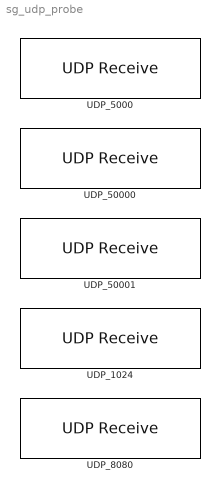
/*
 * sg_udp_probe.cpp
 *
 * Academic License - for use in teaching, academic research, and meeting
 * course requirements at degree granting institutions only.  Not for
 * government, commercial, or other organizational use.
 *
 * Code generation for model "sg_udp_probe".
 *
 * Model version              : 1.1
 * Simulink Coder version : 25.1 (R2025a) 21-Nov-2024
 * C++ source code generated on : Tue Feb 24 15:26:22 2026
 *
 * Target selection: speedgoat.tlc
 * Note: GRT includes extra infrastructure and instrumentation for prototyping
 * Embedded hardware selection: Intel->x86-64 (Linux 64)
 * Code generation objectives: Unspecified
 * Validation result: Not run
 */

#include "sg_udp_probe.h"
#include "sg_udp_probe_cal.h"
#include <cstring>

/* Block signals (default storage) */
B_sg_udp_probe_T sg_udp_probe_B;

/* Block states (default storage) */
DW_sg_udp_probe_T sg_udp_probe_DW;

/* Real-time model */
RT_MODEL_sg_udp_probe_T sg_udp_probe_M_ = RT_MODEL_sg_udp_probe_T();
RT_MODEL_sg_udp_probe_T *const sg_udp_probe_M = &sg_udp_probe_M_;

/* Model step function */
void sg_udp_probe_step(void)
{
  /* S-Function (slrealtimeUDPReceive): '<Root>/UDP_1024' */
  {
    try {
      slrealtime::ip::udp::Socket *udpSock = reinterpret_cast<slrealtime::ip::
        udp::Socket*>(sg_udp_probe_DW.UDP_1024_PWORK[0]);
      char *buffer = (char *)sg_udp_probe_DW.UDP_1024_PWORK[1];
      memset(buffer,0,2048);
      void *dataPort = &sg_udp_probe_B.UDP_1024_o1[0];
      int_T numBytesAvail = (int_T)(udpSock->bytesToRead());
      if (numBytesAvail > 0) {
        uint8_t* fmAddArg = (uint8_t *)sg_udp_probe_cal->UDP_1024_fmAddress;
        size_t num_bytesRcvd = (size_t)(udpSock->receive(buffer,( numBytesAvail<
          65507 )? numBytesAvail:65507, !1,fmAddArg));
        if (num_bytesRcvd == 0) {
          sg_udp_probe_B.UDP_1024_o2 = 0;
        } else {
          sg_udp_probe_B.UDP_1024_o2 = (double)num_bytesRcvd;
          memcpy(dataPort,(void*)buffer,2048);
        }
      } else {
        sg_udp_probe_B.UDP_1024_o2 = 0;
      }
    } catch (std::exception& e) {
      std::string tmp = std::string(e.what());
      static std::string eMsg = tmp;
      rtmSetErrorStatus(sg_udp_probe_M, eMsg.c_str());
      rtmSetStopRequested(sg_udp_probe_M, 1);
      ;
    }
  }

  /* S-Function (slrealtimeUDPReceive): '<Root>/UDP_5000' */
  {
    try {
      slrealtime::ip::udp::Socket *udpSock = reinterpret_cast<slrealtime::ip::
        udp::Socket*>(sg_udp_probe_DW.UDP_5000_PWORK[0]);
      char *buffer = (char *)sg_udp_probe_DW.UDP_5000_PWORK[1];
      memset(buffer,0,2048);
      void *dataPort = &sg_udp_probe_B.UDP_5000_o1[0];
      int_T numBytesAvail = (int_T)(udpSock->bytesToRead());
      if (numBytesAvail > 0) {
        uint8_t* fmAddArg = (uint8_t *)sg_udp_probe_cal->UDP_5000_fmAddress;
        size_t num_bytesRcvd = (size_t)(udpSock->receive(buffer,( numBytesAvail<
          65507 )? numBytesAvail:65507, !1,fmAddArg));
        if (num_bytesRcvd == 0) {
          sg_udp_probe_B.UDP_5000_o2 = 0;
        } else {
          sg_udp_probe_B.UDP_5000_o2 = (double)num_bytesRcvd;
          memcpy(dataPort,(void*)buffer,2048);
        }
      } else {
        sg_udp_probe_B.UDP_5000_o2 = 0;
      }
    } catch (std::exception& e) {
      std::string tmp = std::string(e.what());
      static std::string eMsg = tmp;
      rtmSetErrorStatus(sg_udp_probe_M, eMsg.c_str());
      rtmSetStopRequested(sg_udp_probe_M, 1);
      ;
    }
  }

  /* S-Function (slrealtimeUDPReceive): '<Root>/UDP_50000' */
  {
    try {
      slrealtime::ip::udp::Socket *udpSock = reinterpret_cast<slrealtime::ip::
        udp::Socket*>(sg_udp_probe_DW.UDP_50000_PWORK[0]);
      char *buffer = (char *)sg_udp_probe_DW.UDP_50000_PWORK[1];
      memset(buffer,0,2048);
      void *dataPort = &sg_udp_probe_B.UDP_50000_o1[0];
      int_T numBytesAvail = (int_T)(udpSock->bytesToRead());
      if (numBytesAvail > 0) {
        uint8_t* fmAddArg = (uint8_t *)sg_udp_probe_cal->UDP_50000_fmAddress;
        size_t num_bytesRcvd = (size_t)(udpSock->receive(buffer,( numBytesAvail<
          65507 )? numBytesAvail:65507, !1,fmAddArg));
        if (num_bytesRcvd == 0) {
          sg_udp_probe_B.UDP_50000_o2 = 0;
        } else {
          sg_udp_probe_B.UDP_50000_o2 = (double)num_bytesRcvd;
          memcpy(dataPort,(void*)buffer,2048);
        }
      } else {
        sg_udp_probe_B.UDP_50000_o2 = 0;
      }
    } catch (std::exception& e) {
      std::string tmp = std::string(e.what());
      static std::string eMsg = tmp;
      rtmSetErrorStatus(sg_udp_probe_M, eMsg.c_str());
      rtmSetStopRequested(sg_udp_probe_M, 1);
      ;
    }
  }

  /* S-Function (slrealtimeUDPReceive): '<Root>/UDP_50001' */
  {
    try {
      slrealtime::ip::udp::Socket *udpSock = reinterpret_cast<slrealtime::ip::
        udp::Socket*>(sg_udp_probe_DW.UDP_50001_PWORK[0]);
      char *buffer = (char *)sg_udp_probe_DW.UDP_50001_PWORK[1];
      memset(buffer,0,2048);
      void *dataPort = &sg_udp_probe_B.UDP_50001_o1[0];
      int_T numBytesAvail = (int_T)(udpSock->bytesToRead());
      if (numBytesAvail > 0) {
        uint8_t* fmAddArg = (uint8_t *)sg_udp_probe_cal->UDP_50001_fmAddress;
        size_t num_bytesRcvd = (size_t)(udpSock->receive(buffer,( numBytesAvail<
          65507 )? numBytesAvail:65507, !1,fmAddArg));
        if (num_bytesRcvd == 0) {
          sg_udp_probe_B.UDP_50001_o2 = 0;
        } else {
          sg_udp_probe_B.UDP_50001_o2 = (double)num_bytesRcvd;
          memcpy(dataPort,(void*)buffer,2048);
        }
      } else {
        sg_udp_probe_B.UDP_50001_o2 = 0;
      }
    } catch (std::exception& e) {
      std::string tmp = std::string(e.what());
      static std::string eMsg = tmp;
      rtmSetErrorStatus(sg_udp_probe_M, eMsg.c_str());
      rtmSetStopRequested(sg_udp_probe_M, 1);
      ;
    }
  }

  /* S-Function (slrealtimeUDPReceive): '<Root>/UDP_8080' */
  {
    try {
      slrealtime::ip::udp::Socket *udpSock = reinterpret_cast<slrealtime::ip::
        udp::Socket*>(sg_udp_probe_DW.UDP_8080_PWORK[0]);
      char *buffer = (char *)sg_udp_probe_DW.UDP_8080_PWORK[1];
      memset(buffer,0,2048);
      void *dataPort = &sg_udp_probe_B.UDP_8080_o1[0];
      int_T numBytesAvail = (int_T)(udpSock->bytesToRead());
      if (numBytesAvail > 0) {
        uint8_t* fmAddArg = (uint8_t *)sg_udp_probe_cal->UDP_8080_fmAddress;
        size_t num_bytesRcvd = (size_t)(udpSock->receive(buffer,( numBytesAvail<
          65507 )? numBytesAvail:65507, !1,fmAddArg));
        if (num_bytesRcvd == 0) {
          sg_udp_probe_B.UDP_8080_o2 = 0;
        } else {
          sg_udp_probe_B.UDP_8080_o2 = (double)num_bytesRcvd;
          memcpy(dataPort,(void*)buffer,2048);
        }
      } else {
        sg_udp_probe_B.UDP_8080_o2 = 0;
      }
    } catch (std::exception& e) {
      std::string tmp = std::string(e.what());
      static std::string eMsg = tmp;
      rtmSetErrorStatus(sg_udp_probe_M, eMsg.c_str());
      rtmSetStopRequested(sg_udp_probe_M, 1);
      ;
    }
  }

  /* Update absolute time for base rate */
  /* The "clockTick0" counts the number of times the code of this task has
   * been executed. The absolute time is the multiplication of "clockTick0"
   * and "Timing.stepSize0". Size of "clockTick0" ensures timer will not
   * overflow during the application lifespan selected.
   * Timer of this task consists of two 32 bit unsigned integers.
   * The two integers represent the low bits Timing.clockTick0 and the high bits
   * Timing.clockTickH0. When the low bit overflows to 0, the high bits increment.
   */
  if (!(++sg_udp_probe_M->Timing.clockTick0)) {
    ++sg_udp_probe_M->Timing.clockTickH0;
  }

  sg_udp_probe_M->Timing.taskTime0 = sg_udp_probe_M->Timing.clockTick0 *
    sg_udp_probe_M->Timing.stepSize0 + sg_udp_probe_M->Timing.clockTickH0 *
    sg_udp_probe_M->Timing.stepSize0 * 4294967296.0;
}
